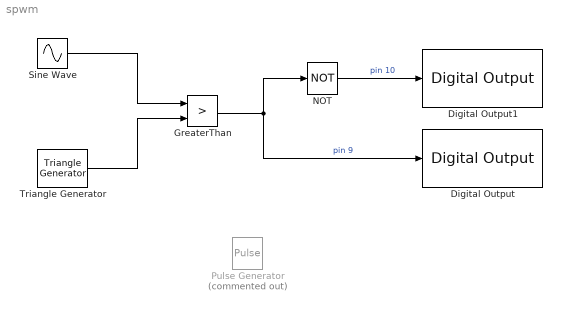
/*
 * Academic License - for use in teaching, academic research, and meeting
 * course requirements at degree granting institutions only.  Not for
 * government, commercial, or other organizational use.
 *
 * File: spwm.c
 *
 * Code generated for Simulink model 'spwm'.
 *
 * Model version                  : 1.5
 * Simulink Coder version         : 24.2 (R2024b) 21-Jun-2024
 * C/C++ source code generated on : Sun Sep 22 12:27:03 2024
 *
 * Target selection: ert.tlc
 * Embedded hardware selection: ARM Compatible->ARM Cortex
 * Code generation objectives: Unspecified
 * Validation result: Not run
 */

#include "spwm.h"
#include "spwm_private.h"
#include <math.h>
#include "rtwtypes.h"
#include "rt_nonfinite.h"
#include <float.h>

/* Block signals (default storage) */
B_spwm_T spwm_B;

/* Block states (default storage) */
DW_spwm_T spwm_DW;

/* Real-time model */
static RT_MODEL_spwm_T spwm_M_;
RT_MODEL_spwm_T *const spwm_M = &spwm_M_;
static void rate_monotonic_scheduler(void);
real_T look1_pbinlxpw(real_T u0, const real_T bp0[], const real_T table[],
                      uint32_T prevIndex[], uint32_T maxIndex)
{
  real_T frac;
  real_T yL_0d0;
  uint32_T bpIdx;
  uint32_T found;
  uint32_T iLeft;
  uint32_T iRght;

  /* Column-major Lookup 1-D
     Search method: 'binary'
     Use previous index: 'on'
     Interpolation method: 'Linear point-slope'
     Extrapolation method: 'Linear'
     Use last breakpoint for index at or above upper limit: 'off'
     Remove protection against out-of-range input in generated code: 'off'
   */
  /* Prelookup - Index and Fraction
     Index Search method: 'binary'
     Extrapolation method: 'Linear'
     Use previous index: 'on'
     Use last breakpoint for index at or above upper limit: 'off'
     Remove protection against out-of-range input in generated code: 'off'
   */
  if (u0 <= bp0[0U]) {
    bpIdx = 0U;
    frac = (u0 - bp0[0U]) / (bp0[1U] - bp0[0U]);
  } else if (u0 < bp0[maxIndex]) {
    /* Binary Search using Previous Index */
    bpIdx = prevIndex[0U];
    iLeft = 0U;
    iRght = maxIndex;
    found = 0U;
    while (found == 0U) {
      if (u0 < bp0[bpIdx]) {
        iRght = bpIdx - 1U;
        bpIdx = ((bpIdx + iLeft) - 1U) >> 1U;
      } else if (u0 < bp0[bpIdx + 1U]) {
        found = 1U;
      } else {
        iLeft = bpIdx + 1U;
        bpIdx = ((bpIdx + iRght) + 1U) >> 1U;
      }
    }

    frac = (u0 - bp0[bpIdx]) / (bp0[bpIdx + 1U] - bp0[bpIdx]);
  } else {
    bpIdx = maxIndex - 1U;
    frac = (u0 - bp0[maxIndex - 1U]) / (bp0[maxIndex] - bp0[maxIndex - 1U]);
  }

  prevIndex[0U] = bpIdx;

  /* Column-major Interpolation 1-D
     Interpolation method: 'Linear point-slope'
     Use last breakpoint for index at or above upper limit: 'off'
     Overflow mode: 'portable wrapping'
   */
  yL_0d0 = table[bpIdx];
  return (table[bpIdx + 1U] - yL_0d0) * frac + yL_0d0;
}

/*
 * Set which subrates need to run this base step (base rate always runs).
 * This function must be called prior to calling the model step function
 * in order to remember which rates need to run this base step.  The
 * buffering of events allows for overlapping preemption.
 */
void spwm_SetEventsForThisBaseStep(boolean_T *eventFlags)
{
  /* Task runs when its counter is zero, computed via rtmStepTask macro */
  eventFlags[2] = ((boolean_T)rtmStepTask(spwm_M, 2));
}

/*
 *         This function updates active task flag for each subrate
 *         and rate transition flags for tasks that exchange data.
 *         The function assumes rate-monotonic multitasking scheduler.
 *         The function must be called at model base rate so that
 *         the generated code self-manages all its subrates and rate
 *         transition flags.
 */
static void rate_monotonic_scheduler(void)
{
  /* Compute which subrates run during the next base time step.  Subrates
   * are an integer multiple of the base rate counter.  Therefore, the subtask
   * counter is reset when it reaches its limit (zero means run).
   *
   * Sample time offsets are handled by priming the counter with the
   * appropriate non-zero value in the model initialize function.
   */
  (spwm_M->Timing.TaskCounters.TID[2])++;
  if ((spwm_M->Timing.TaskCounters.TID[2]) > 9) {/* Sample time: [0.01s, 0.005s] */
    spwm_M->Timing.TaskCounters.TID[2] = 0;
  }
}

real_T rt_remd_snf(real_T u0, real_T u1)
{
  real_T q;
  real_T y;
  if (rtIsNaN(u0) || rtIsNaN(u1) || rtIsInf(u0)) {
    y = (rtNaN);
  } else if (rtIsInf(u1)) {
    y = u0;
  } else {
    if (u1 < 0.0) {
      q = ceil(u1);
    } else {
      q = floor(u1);
    }

    if ((u1 != 0.0) && (u1 != q)) {
      q = fabs(u0 / u1);
      if (!(fabs(q - floor(q + 0.5)) > DBL_EPSILON * q)) {
        y = 0.0 * u0;
      } else {
        y = fmod(u0, u1);
      }
    } else {
      y = fmod(u0, u1);
    }
  }

  return y;
}

/* Model step function for TID0 */
void spwm_step0(void)                  /* Sample time: [0.0s, 0.0s] */
{
  real_T rtb_uDLookupTable;

  {                                    /* Sample time: [0.0s, 0.0s] */
    rate_monotonic_scheduler();
  }

  /* Lookup_n-D: '<S2>/1-D Lookup Table' incorporates:
   *  Clock: '<S2>/Clock'
   *  Constant: '<S2>/Constant3'
   *  Constant: '<S2>/Constant4'
   *  Gain: '<S2>/1\ib1'
   *  Math: '<S2>/Math Function'
   *  Sum: '<S2>/Add1'
   */
  rtb_uDLookupTable = look1_pbinlxpw(rt_remd_snf(spwm_M->Timing.t[0] + 0.005,
    0.02) * 50.0, spwm_ConstP.uDLookupTable_bp01Data,
    spwm_ConstP.uDLookupTable_tableData, &spwm_DW.m_bpIndex, 2U);

  /* RelationalOperator: '<Root>/GreaterThan' incorporates:
   *  Constant: '<S2>/Constant2'
   *  Sin: '<Root>/Sine Wave'
   *  Sum: '<S2>/Add3'
   */
  spwm_B.pin9 = (sin(spwm_M->Timing.t[0]) > rtb_uDLookupTable - 1.0);

  /* MATLABSystem: '<Root>/Digital Output' */
  writeDigitalPin(32, (uint8_T)spwm_B.pin9);

  /* Logic: '<Root>/NOT' */
  spwm_B.pin10 = !spwm_B.pin9;

  /* MATLABSystem: '<Root>/Digital Output1' */
  writeDigitalPin(2, (uint8_T)spwm_B.pin10);

  /* Update absolute time */
  /* The "clockTick0" counts the number of times the code of this task has
   * been executed. The absolute time is the multiplication of "clockTick0"
   * and "Timing.stepSize0". Size of "clockTick0" ensures timer will not
   * overflow during the application lifespan selected.
   */
  spwm_M->Timing.t[0] =
    ((time_T)(++spwm_M->Timing.clockTick0)) * spwm_M->Timing.stepSize0;

  /* Update absolute time */
  /* The "clockTick1" counts the number of times the code of this task has
   * been executed. The resolution of this integer timer is 0.001, which is the step size
   * of the task. Size of "clockTick1" ensures timer will not overflow during the
   * application lifespan selected.
   */
  spwm_M->Timing.clockTick1++;
}

/* Model step function for TID2 */
void spwm_step2(void)                  /* Sample time: [0.01s, 0.005s] */
{
  /* Update absolute time */
  /* The "clockTick2" counts the number of times the code of this task has
   * been executed. The resolution of this integer timer is 0.01, which is the step size
   * of the task. Size of "clockTick2" ensures timer will not overflow during the
   * application lifespan selected.
   */
  spwm_M->Timing.clockTick2++;
}

/* Use this function only if you need to maintain compatibility with an existing static main program. */
void spwm_step(int_T tid)
{
  switch (tid) {
   case 0 :
    spwm_step0();
    break;

   case 2 :
    spwm_step2();
    break;

   default :
    /* do nothing */
    break;
  }
}
